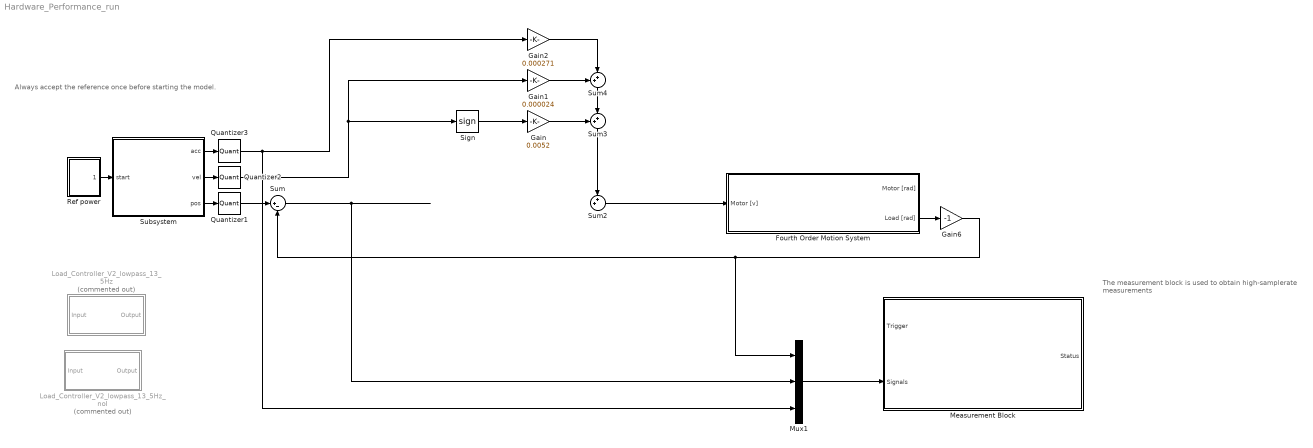
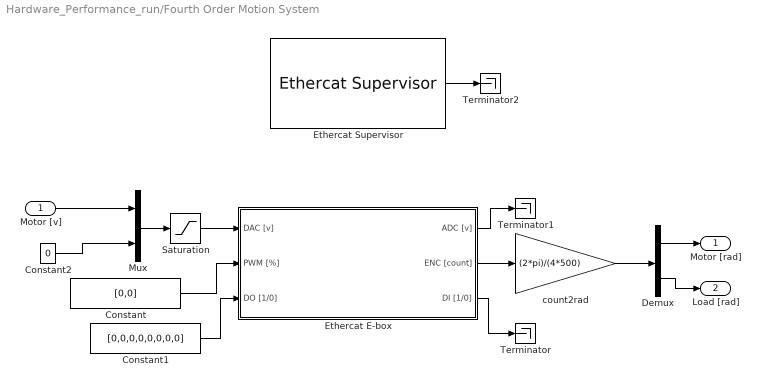
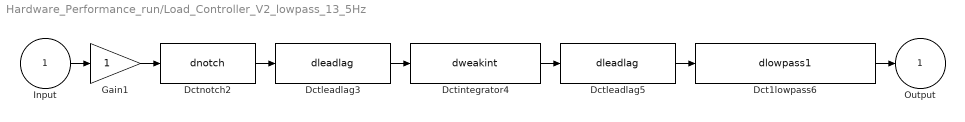
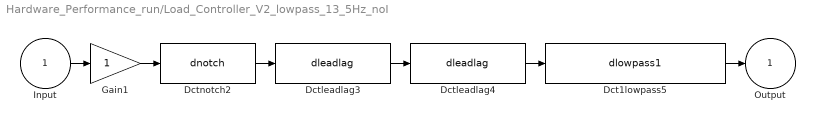
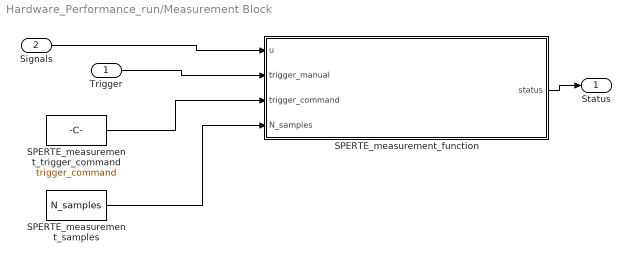
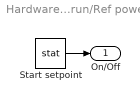
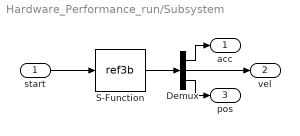
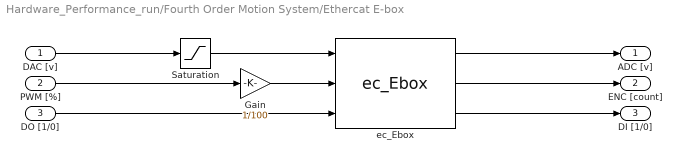
== matlab function Hardware_Performance_run/Measurement Block/SPERTE_measurement_function ==
function status = perform_measurement(u, trigger_manual, trigger_command, triggertype, N_samples)

%% Persistent variables
persistent fileID NF busy NS

% Init parameters
if isempty(NF)
    NF = int16(0);
end
if isempty(NS)
    NS = uint32(0);
end
if isempty(fileID)
    fileID = 0;
end
if isempty(busy)
    busy = uint8(0);
end

%% Check the triggers
if ( (triggertype == 0 && trigger_manual == 1) || (triggertype == 1 && trigger_command == 1) || (triggertype == 2 && (trigger_command == 1 || trigger_manual == 1) ) )
    if busy == 1
        % We are already busy, nothing to do
    else
        % We should start a new one
        fileID = fopen(sprintf('measurement_%d.bin',NF),'w');  
        NF = NF + 1;
        busy = uint8(1);
        NS = uint32(0);
    end
end

% We have started a measurement
if busy == 1
    if NS < N_samples 
        % Here we write the sample, in single precision float
        fwrite(fileID,u,'single');
        NS = NS + uint32(1);
    else
       % We have N samples already, we are done
       fclose(fileID);
       busy = uint8(0);
       NS = uint32(0);
    end
      
end
    % Output state
    status = uint8(busy);
end

/*
 * Hardware_Performance_run.c
 *
 * Academic License - for use in teaching, academic research, and meeting
 * course requirements at degree granting institutions only.  Not for
 * government, commercial, or other organizational use.
 *
 * Code generation for model "Hardware_Performance_run".
 *
 * Model version              : 14.24
 * Simulink Coder version : 25.1 (R2025a) 21-Nov-2024
 * C source code generated on : Fri Oct 24 12:08:27 2025
 *
 * Target selection: ert.tlc
 * Note: GRT includes extra infrastructure and instrumentation for prototyping
 * Embedded hardware selection: ARM Compatible->ARM Cortex-A (32-bit)
 * Code generation objectives: Unspecified
 * Validation result: Not run
 */

#include "Hardware_Performance_run.h"
#include "Hardware_Performance_run_types.h"
#include "rtwtypes.h"
#include <string.h>
#include <stddef.h>
#include "Hardware_Performance_run_private.h"
#include "rt_nonfinite.h"
#include <stdio.h>
#include <stdlib.h>
#include <math.h>

/* Named constants for MATLAB Function: '<S3>/SPERTE_measurement_function' */
#define Hardware_Performance_CALL_EVENT (-1)

/* Block signals (default storage) */
B_Hardware_Performance_run_T Hardware_Performance_run_B;

/* Block states (default storage) */
DW_Hardware_Performance_run_T Hardware_Performance_run_DW;

/* Real-time model */
static RT_MODEL_Hardware_Performance_run_T Hardware_Performance_run_M_;
RT_MODEL_Hardware_Performance_run_T *const Hardware_Performance_run_M =
  &Hardware_Performance_run_M_;

/* Forward declaration for local functions */
static void Hardware_Perform_emxInit_char_T(emxArray_char_T_Hardware_Perf_T
  **pEmxArray, int32_T numDimensions);
static void Hardwa_emxEnsureCapacity_char_T(emxArray_char_T_Hardware_Perf_T
  *emxArray, int32_T oldNumel);
static void Hardware_Perform_emxFree_char_T(emxArray_char_T_Hardware_Perf_T
  **pEmxArray);
static int8_T Hardware_Performance_r_filedata(void);
static int8_T Hardware_Performance_run_cfopen(const
  emxArray_char_T_Hardware_Perf_T *cfilename, const char_T *cpermission);
static int32_T Hardware_Performance_ru_cfclose(real_T fid);

/*
 * Writes out MAT-file header.  Returns success or failure.
 * Returns:
 * 0 - success
 * 1 - failure
 */
int_T rt_WriteMat4FileHeader(FILE *fp, int32_T m, int32_T n, const char *name)
{
  typedef enum { ELITTLE_ENDIAN, EBIG_ENDIAN } ByteOrder;

  int16_T one = 1;
  ByteOrder byteOrder = (*((int8_T *)&one)==1) ? ELITTLE_ENDIAN : EBIG_ENDIAN;
  int32_T type = (byteOrder == ELITTLE_ENDIAN) ? 0: 1000;
  int32_T imagf = 0;
  int32_T name_len = (int32_T)strlen(name) + 1;
  if ((fwrite(&type, sizeof(int32_T), 1, fp) == 0) ||
      (fwrite(&m, sizeof(int32_T), 1, fp) == 0) ||
      (fwrite(&n, sizeof(int32_T), 1, fp) == 0) ||
      (fwrite(&imagf, sizeof(int32_T), 1, fp) == 0) ||
      (fwrite(&name_len, sizeof(int32_T), 1, fp) == 0) ||
      (fwrite(name, sizeof(char), name_len, fp) == 0)) {
    return(1);
  } else {
    return(0);
  }
}                                      /* end rt_WriteMat4FileHeader */

real_T rt_roundd_snf(real_T u)
{
  real_T y;
  if (fabs(u) < 4.503599627370496E+15) {
    if (u >= 0.5) {
      y = floor(u + 0.5);
    } else if (u > -0.5) {
      y = u * 0.0;
    } else {
      y = ceil(u - 0.5);
    }
  } else {
    y = u;
  }

  return y;
}

static void Hardware_Perform_emxInit_char_T(emxArray_char_T_Hardware_Perf_T
  **pEmxArray, int32_T numDimensions)
{
  emxArray_char_T_Hardware_Perf_T *emxArray;
  int32_T i;
  *pEmxArray = (emxArray_char_T_Hardware_Perf_T *)malloc(sizeof
    (emxArray_char_T_Hardware_Perf_T));
  emxArray = *pEmxArray;
  emxArray->data = (char_T *)NULL;
  emxArray->numDimensions = numDimensions;
  emxArray->size = (int32_T *)malloc(sizeof(int32_T) * (uint32_T)numDimensions);
  emxArray->allocatedSize = 0;
  emxArray->canFreeData = true;
  for (i = 0; i < numDimensions; i++) {
    emxArray->size[i] = 0;
  }
}

static void Hardwa_emxEnsureCapacity_char_T(emxArray_char_T_Hardware_Perf_T
  *emxArray, int32_T oldNumel)
{
  int32_T i;
  int32_T newNumel;
  void *newData;
  if (oldNumel < 0) {
    oldNumel = 0;
  }

  newNumel = 1;
  for (i = 0; i < emxArray->numDimensions; i++) {
    newNumel *= emxArray->size[i];
  }

  if (newNumel > emxArray->allocatedSize) {
    i = emxArray->allocatedSize;
    if (i < 16) {
      i = 16;
    }

    while (i < newNumel) {
      if (i > 1073741823) {
        i = MAX_int32_T;
      } else {
        i <<= 1;
      }
    }

    newData = malloc((uint32_T)i * sizeof(char_T));
    if (emxArray->data != NULL) {
      memcpy(newData, emxArray->data, sizeof(char_T) * (uint32_T)oldNumel);
      if (emxArray->canFreeData) {
        free(emxArray->data);
      }
    }

    emxArray->data = (char_T *)newData;
    emxArray->allocatedSize = i;
    emxArray->canFreeData = true;
  }
}

static void Hardware_Perform_emxFree_char_T(emxArray_char_T_Hardware_Perf_T
  **pEmxArray)
{
  if (*pEmxArray != (emxArray_char_T_Hardware_Perf_T *)NULL) {
    if (((*pEmxArray)->data != (char_T *)NULL) && (*pEmxArray)->canFreeData) {
      free((*pEmxArray)->data);
    }

    free((*pEmxArray)->size);
    free(*pEmxArray);
    *pEmxArray = (emxArray_char_T_Hardware_Perf_T *)NULL;
  }
}

/* Function for MATLAB Function: '<S3>/SPERTE_measurement_function' */
static int8_T Hardware_Performance_r_filedata(void)
{
  int32_T k;
  int8_T f;
  boolean_T exitg1;
  f = 0;
  k = 1;
  exitg1 = false;
  while ((!exitg1) && (k - 1 < 20)) {
    if (Hardware_Performance_run_DW.eml_openfiles[(int8_T)k - 1] == NULL) {
      f = (int8_T)k;
      exitg1 = true;
    } else {
      k++;
    }
  }

  return f;
}

/* Function for MATLAB Function: '<S3>/SPERTE_measurement_function' */
static int8_T Hardware_Performance_run_cfopen(const
  emxArray_char_T_Hardware_Perf_T *cfilename, const char_T *cpermission)
{
  FILE *filestar;
  emxArray_char_T_Hardware_Perf_T *ccfilename;
  int32_T loop_ub;
  int8_T fileid;
  int8_T j;
  fileid = -1;
  j = Hardware_Performance_r_filedata();
  if (j >= 1) {
    Hardware_Perform_emxInit_char_T(&ccfilename, 2);
    loop_ub = ccfilename->size[0] * ccfilename->size[1];
    ccfilename->size[0] = 1;
    ccfilename->size[1] = cfilename->size[1] + 1;
    Hardwa_emxEnsureCapacity_char_T(ccfilename, loop_ub);
    loop_ub = cfilename->size[1];
    if (loop_ub - 1 >= 0) {
      memcpy(&ccfilename->data[0], &cfilename->data[0], (uint32_T)loop_ub *
             sizeof(char_T));
    }

    ccfilename->data[cfilename->size[1]] = '\x00';
    filestar = fopen(&ccfilename->data[0], cpermission);
    Hardware_Perform_emxFree_char_T(&ccfilename);
    if (filestar != NULL) {
      Hardware_Performance_run_DW.eml_openfiles[j - 1] = filestar;
      Hardware_Performance_run_DW.eml_autoflush[j - 1] = true;
      loop_ub = j + 2;
      if (j + 2 > 127) {
        loop_ub = 127;
      }

      fileid = (int8_T)loop_ub;
    }
  }

  return fileid;
}

/* Function for MATLAB Function: '<S3>/SPERTE_measurement_function' */
static int32_T Hardware_Performance_ru_cfclose(real_T fid)
{
  FILE *f;
  int32_T cst;
  int32_T st;
  int8_T b_fileid;
  int8_T fileid;
  st = -1;
  fileid = (int8_T)fid;
  if (((int8_T)fid < 0) || (fid != (int8_T)fid)) {
    fileid = -1;
  }

  b_fileid = fileid;
  if (fileid < 0) {
    b_fileid = -1;
  }

  if (b_fileid >= 3) {
    f = Hardware_Performance_run_DW.eml_openfiles[b_fileid - 3];
  } else if (b_fileid == 0) {
    f = stdin;
  } else if (b_fileid == 1) {
    f = stdout;
  } else if (b_fileid == 2) {
    f = stderr;
  } else {
    f = NULL;
  }

  if ((f != NULL) && (fileid >= 3)) {
    cst = fclose(f);
    if (cst == 0) {
      st = 0;
      Hardware_Performance_run_DW.eml_openfiles[fileid - 3] = NULL;
      Hardware_Performance_run_DW.eml_autoflush[fileid - 3] = true;
    }
  }

  return st;
}

/* Model step function */
void Hardware_Performance_run_step(void)
{
  FILE *f;
  size_t bytesOutSizet;
  emxArray_char_T_Hardware_Perf_T *str;
  emxArray_char_T_Hardware_Perf_T *str_0;
  real_T rtb_Gain6;
  real_T rtb_Quantizer3;
  real_T rtb_Sum;
  real_T rtb_Sum2;
  real_T tmp;
  int32_T nbytes;
  int32_T tmp_0;
  real32_T xout[3];
  int8_T b_fileid;
  boolean_T autoflush;

  /* Constant: '<S4>/Start setpoint' */
  Hardware_Performance_run_B.Startsetpoint =
    Hardware_Performance_run_P.Refpower_stat;

  /* S-Function (ref3b): '<S5>/S-Function' */

  /* Level2 S-Function Block: '<S5>/S-Function' (ref3b) */
  {
    SimStruct *rts = Hardware_Performance_run_M->childSfunctions[0];
    sfcnOutputs(rts,0);
  }

  /* S-Function (getTiming): '<S7>/S-Function1' */

  /* Level2 S-Function Block: '<S7>/S-Function1' (getTiming) */
  {
    SimStruct *rts = Hardware_Performance_run_M->childSfunctions[1];
    sfcnOutputs(rts,0);
  }

  /* ToFile: '<S7>/To File ' */
  {
    if (!(++Hardware_Performance_run_DW.ToFile_IWORK.Decimation % 1) &&
        (Hardware_Performance_run_DW.ToFile_IWORK.Count * (1 + 1)) + 1 <
        100000000 ) {
      FILE *fp = (FILE *) Hardware_Performance_run_DW.ToFile_PWORK.FilePtr;
      if (fp != (NULL)) {
        real_T u[1 + 1];
        Hardware_Performance_run_DW.ToFile_IWORK.Decimation = 0;
        u[0] = Hardware_Performance_run_M->Timing.t[1];
        u[1] = Hardware_Performance_run_B.SFunction1;
        if (fwrite(u, sizeof(real_T), 1 + 1, fp) != 1 + 1) {
          rtmSetErrorStatus(Hardware_Performance_run_M,
                            "Error writing to MAT-file Ts_meas.mat");
          return;
        }

        if (((++Hardware_Performance_run_DW.ToFile_IWORK.Count) * (1 + 1))+1 >=
            100000000) {
          (void)fprintf(stdout,
                        "*** The ToFile block will stop logging data before\n"
                        "    the simulation has ended, because it has reached\n"
                        "    the maximum number of elements (100000000)\n"
                        "    allowed in MAT-file Ts_meas.mat.\n");
        }
      }
    }
  }

  /* S-Function (ec_Supervisor): '<S7>/S-Function' */

  /* Level2 S-Function Block: '<S7>/S-Function' (ec_Supervisor) */
  {
    SimStruct *rts = Hardware_Performance_run_M->childSfunctions[2];
    sfcnOutputs(rts,0);
  }

  /* S-Function (ec_Ebox): '<S6>/ec_Ebox' */

  /* Level2 S-Function Block: '<S6>/ec_Ebox' (ec_Ebox) */
  {
    SimStruct *rts = Hardware_Performance_run_M->childSfunctions[3];
    sfcnOutputs(rts,0);
  }

  /* Gain: '<S6>/Gain' incorporates:
   *  Constant: '<S2>/Constant'
   */
  Hardware_Performance_run_B.Gain[0] = Hardware_Performance_run_P.Gain_Gain *
    Hardware_Performance_run_P.Constant_Value[0];
  Hardware_Performance_run_B.Gain[1] = Hardware_Performance_run_P.Gain_Gain *
    Hardware_Performance_run_P.Constant_Value[1];

  /* Gain: '<Root>/Gain6' incorporates:
   *  Gain: '<S2>/count2rad'
   */
  rtb_Gain6 = Hardware_Performance_run_P.count2rad_Gain *
    Hardware_Performance_run_B.ec_Ebox_o2[1] *
    Hardware_Performance_run_P.Gain6_Gain;

  /* Sum: '<Root>/Sum' incorporates:
   *  Quantizer: '<Root>/Quantizer1'
   */
  rtb_Sum = rt_roundd_snf(Hardware_Performance_run_B.SFunction[2] /
    Hardware_Performance_run_P.Quantizer1_Interval) *
    Hardware_Performance_run_P.Quantizer1_Interval - rtb_Gain6;

  /* Gain: '<S1>/Gain1' */
  Hardware_Performance_run_B.Gain1 = Hardware_Performance_run_P.Gain1_Gain *
    rtb_Sum;

  /* S-Function (dnotch): '<S1>/Dctnotch2' */

  /* Level2 S-Function Block: '<S1>/Dctnotch2' (dnotch) */
  {
    SimStruct *rts = Hardware_Performance_run_M->childSfunctions[4];
    sfcnOutputs(rts,0);
  }

  /* S-Function (dleadlag): '<S1>/Dctleadlag3' */

  /* Level2 S-Function Block: '<S1>/Dctleadlag3' (dleadlag) */
  {
    SimStruct *rts = Hardware_Performance_run_M->childSfunctions[5];
    sfcnOutputs(rts,0);
  }

  /* S-Function (dleadlag): '<S1>/Dctleadlag4' */

  /* Level2 S-Function Block: '<S1>/Dctleadlag4' (dleadlag) */
  {
    SimStruct *rts = Hardware_Performance_run_M->childSfunctions[6];
    sfcnOutputs(rts,0);
  }

  /* S-Function (dlowpass1): '<S1>/Dct1lowpass5' */

  /* Level2 S-Function Block: '<S1>/Dct1lowpass5' (dlowpass1) */
  {
    SimStruct *rts = Hardware_Performance_run_M->childSfunctions[7];
    sfcnOutputs(rts,0);
  }

  /* Quantizer: '<Root>/Quantizer2' */
  rtb_Sum2 = rt_roundd_snf(Hardware_Performance_run_B.SFunction[1] /
    Hardware_Performance_run_P.Quantizer2_Interval) *
    Hardware_Performance_run_P.Quantizer2_Interval;

  /* Quantizer: '<Root>/Quantizer3' */
  rtb_Quantizer3 = rt_roundd_snf(Hardware_Performance_run_B.SFunction[0] /
    Hardware_Performance_run_P.Quantizer3_Interval) *
    Hardware_Performance_run_P.Quantizer3_Interval;

  /* Signum: '<Root>/Sign' */
  if (rtIsNaN(rtb_Sum2)) {
    tmp = (rtNaN);
  } else if (rtb_Sum2 < 0.0) {
    tmp = -1.0;
  } else {
    tmp = (rtb_Sum2 > 0.0);
  }

  /* Sum: '<Root>/Sum2' incorporates:
   *  Gain: '<Root>/Gain'
   *  Gain: '<Root>/Gain1'
   *  Gain: '<Root>/Gain2'
   *  Signum: '<Root>/Sign'
   *  Sum: '<Root>/Sum3'
   *  Sum: '<Root>/Sum4'
   */
  rtb_Sum2 = ((Hardware_Performance_run_P.Gain1_Gain_j * rtb_Sum2 +
               Hardware_Performance_run_P.Gain2_Gain * rtb_Quantizer3) +
              Hardware_Performance_run_P.Gain_Gain_h * tmp) +
    Hardware_Performance_run_B.Dct1lowpass5;

  /* Saturate: '<S2>/Saturation' */
  if (rtb_Sum2 > Hardware_Performance_run_P.Saturation_UpperSat) {
    rtb_Sum2 = Hardware_Performance_run_P.Saturation_UpperSat;
  } else if (rtb_Sum2 < Hardware_Performance_run_P.Saturation_LowerSat) {
    rtb_Sum2 = Hardware_Performance_run_P.Saturation_LowerSat;
  }

  /* Saturate: '<S6>/Saturation' */
  if (rtb_Sum2 > Hardware_Performance_run_P.Saturation_UpperSat_d) {
    /* Saturate: '<S6>/Saturation' */
    Hardware_Performance_run_B.Saturation[0] =
      Hardware_Performance_run_P.Saturation_UpperSat_d;
  } else if (rtb_Sum2 < Hardware_Performance_run_P.Saturation_LowerSat_e) {
    /* Saturate: '<S6>/Saturation' */
    Hardware_Performance_run_B.Saturation[0] =
      Hardware_Performance_run_P.Saturation_LowerSat_e;
  } else {
    /* Saturate: '<S6>/Saturation' */
    Hardware_Performance_run_B.Saturation[0] = rtb_Sum2;
  }

  /* Saturate: '<S2>/Saturation' incorporates:
   *  Constant: '<S2>/Constant2'
   */
  if (Hardware_Performance_run_P.Constant2_Value >
      Hardware_Performance_run_P.Saturation_UpperSat) {
    rtb_Sum2 = Hardware_Performance_run_P.Saturation_UpperSat;
  } else if (Hardware_Performance_run_P.Constant2_Value <
             Hardware_Performance_run_P.Saturation_LowerSat) {
    rtb_Sum2 = Hardware_Performance_run_P.Saturation_LowerSat;
  } else {
    rtb_Sum2 = Hardware_Performance_run_P.Constant2_Value;
  }

  /* Saturate: '<S6>/Saturation' */
  if (rtb_Sum2 > Hardware_Performance_run_P.Saturation_UpperSat_d) {
    /* Saturate: '<S6>/Saturation' */
    Hardware_Performance_run_B.Saturation[1] =
      Hardware_Performance_run_P.Saturation_UpperSat_d;
  } else if (rtb_Sum2 < Hardware_Performance_run_P.Saturation_LowerSat_e) {
    /* Saturate: '<S6>/Saturation' */
    Hardware_Performance_run_B.Saturation[1] =
      Hardware_Performance_run_P.Saturation_LowerSat_e;
  } else {
    /* Saturate: '<S6>/Saturation' */
    Hardware_Performance_run_B.Saturation[1] = rtb_Sum2;
  }

  /* MATLAB Function: '<S3>/SPERTE_measurement_function' incorporates:
   *  Constant: '<S3>/SPERTE_measurement_samples'
   *  Constant: '<S3>/SPERTE_measurement_trigger_command'
   *  SignalConversion generated from: '<S8>/ SFunction '
   */
  Hardware_Performance_run_DW.sfEvent = Hardware_Performance_CALL_EVENT;
  if ((((Hardware_Performance_run_P.MeasurementBlock_triggertype == 1) &&
        (Hardware_Performance_run_P.MeasurementBlock_trigger_comman == 1)) ||
       ((Hardware_Performance_run_P.MeasurementBlock_triggertype == 2) &&
        (Hardware_Performance_run_P.MeasurementBlock_trigger_comman == 1))) &&
      (Hardware_Performance_run_DW.busy != 1)) {
    nbytes = (int32_T)snprintf(NULL, 0, "measurement_%d.bin",
      Hardware_Performance_run_DW.NF) + 1;
    Hardware_Perform_emxInit_char_T(&str, 2);
    tmp_0 = str->size[0] * str->size[1];
    str->size[0] = 1;
    str->size[1] = nbytes;
    Hardwa_emxEnsureCapacity_char_T(str, tmp_0);
    snprintf(&str->data[0], (size_t)nbytes, "measurement_%d.bin",
             Hardware_Performance_run_DW.NF);
    if (nbytes - 1 < 1) {
      nbytes = -1;
    } else {
      nbytes -= 2;
    }

    Hardware_Perform_emxInit_char_T(&str_0, 2);
    tmp_0 = str_0->size[0] * str_0->size[1];
    str_0->size[0] = 1;
    str_0->size[1] = nbytes + 1;
    Hardwa_emxEnsureCapacity_char_T(str_0, tmp_0);
    if (nbytes >= 0) {
      memcpy(&str_0->data[0], &str->data[0], (uint32_T)(nbytes + 1) * sizeof
             (char_T));
    }

    Hardware_Perform_emxFree_char_T(&str);
    b_fileid = Hardware_Performance_run_cfopen(str_0, "wb");
    Hardware_Perform_emxFree_char_T(&str_0);
    Hardware_Performance_run_DW.fileID = b_fileid;
    nbytes = Hardware_Performance_run_DW.NF + 1;
    if (Hardware_Performance_run_DW.NF + 1 > 32767) {
      nbytes = 32767;
    }

    Hardware_Performance_run_DW.NF = (int16_T)nbytes;
    Hardware_Performance_run_DW.busy = 1U;
    Hardware_Performance_run_DW.NS = 0U;
  }

  if (Hardware_Performance_run_DW.busy == 1) {
    if (Hardware_Performance_run_DW.NS <
        Hardware_Performance_run_P.MeasurementBlock_N_samples) {
      b_fileid = (int8_T)Hardware_Performance_run_DW.fileID;
      if (((int8_T)Hardware_Performance_run_DW.fileID < 0) ||
          (Hardware_Performance_run_DW.fileID != (int8_T)
           Hardware_Performance_run_DW.fileID)) {
        b_fileid = -1;
      }

      if (b_fileid >= 3) {
        autoflush = Hardware_Performance_run_DW.eml_autoflush[b_fileid - 3];
        f = Hardware_Performance_run_DW.eml_openfiles[b_fileid - 3];
      } else if (b_fileid == 0) {
        f = stdin;
        autoflush = true;
      } else if (b_fileid == 1) {
        f = stdout;
        autoflush = true;
      } else if (b_fileid == 2) {
        f = stderr;
        autoflush = true;
      } else {
        f = NULL;
        autoflush = true;
      }

      if (!(Hardware_Performance_run_DW.fileID != 0.0)) {
        f = NULL;
      }

      if (!(f == NULL)) {
        xout[0] = (real32_T)rtb_Gain6;
        xout[1] = (real32_T)rtb_Sum;
        xout[2] = (real32_T)rtb_Quantizer3;
        bytesOutSizet = fwrite(&xout[0], sizeof(real32_T), (size_t)3, f);
        if (((real_T)bytesOutSizet > 0.0) && autoflush) {
          fflush(f);
        }
      }

      Hardware_Performance_run_DW.NS++;
    } else {
      Hardware_Performance_ru_cfclose(Hardware_Performance_run_DW.fileID);
      Hardware_Performance_run_DW.busy = 0U;
      Hardware_Performance_run_DW.NS = 0U;
    }
  }

  /* End of MATLAB Function: '<S3>/SPERTE_measurement_function' */

  /* Constant: '<S2>/Constant1' */
  memcpy(&Hardware_Performance_run_B.Constant1[0],
         &Hardware_Performance_run_P.Constant1_Value[0], sizeof(real_T) << 3U);

  {                                    /* Sample time: [0.00025s, 0.0s] */
    extmodeErrorCode_T errorCode = EXTMODE_SUCCESS;
    extmodeSimulationTime_T extmodeTime = (extmodeSimulationTime_T)
      Hardware_Performance_run_M->Timing.t[1];

    /* Trigger External Mode event */
    errorCode = extmodeEvent(1, extmodeTime);
    if (errorCode != EXTMODE_SUCCESS) {
      /* Code to handle External Mode event errors
         may be added here */
    }
  }

  /* Update absolute time for base rate */
  /* The "clockTick0" counts the number of times the code of this task has
   * been executed. The absolute time is the multiplication of "clockTick0"
   * and "Timing.stepSize0". Size of "clockTick0" ensures timer will not
   * overflow during the application lifespan selected.
   * Timer of this task consists of two 32 bit unsigned integers.
   * The two integers represent the low bits Timing.clockTick0 and the high bits
   * Timing.clockTickH0. When the low bit overflows to 0, the high bits increment.
   */
  if (!(++Hardware_Performance_run_M->Timing.clockTick0)) {
    ++Hardware_Performance_run_M->Timing.clockTickH0;
  }

  Hardware_Performance_run_M->Timing.t[0] =
    Hardware_Performance_run_M->Timing.clockTick0 *
    Hardware_Performance_run_M->Timing.stepSize0 +
    Hardware_Performance_run_M->Timing.clockTickH0 *
    Hardware_Performance_run_M->Timing.stepSize0 * 4294967296.0;

  {
    /* Update absolute timer for sample time: [0.00025s, 0.0s] */
    /* The "clockTick1" counts the number of times the code of this task has
     * been executed. The absolute time is the multiplication of "clockTick1"
     * and "Timing.stepSize1". Size of "clockTick1" ensures timer will not
     * overflow during the application lifespan selected.
     * Timer of this task consists of two 32 bit unsigned integers.
     * The two integers represent the low bits Timing.clockTick1 and the high bits
     * Timing.clockTickH1. When the low bit overflows to 0, the high bits increment.
     */
    if (!(++Hardware_Performance_run_M->Timing.clockTick1)) {
      ++Hardware_Performance_run_M->Timing.clockTickH1;
    }

    Hardware_Performance_run_M->Timing.t[1] =
      Hardware_Performance_run_M->Timing.clockTick1 *
      Hardware_Performance_run_M->Timing.stepSize1 +
      Hardware_Performance_run_M->Timing.clockTickH1 *
      Hardware_Performance_run_M->Timing.stepSize1 * 4294967296.0;
  }
}
